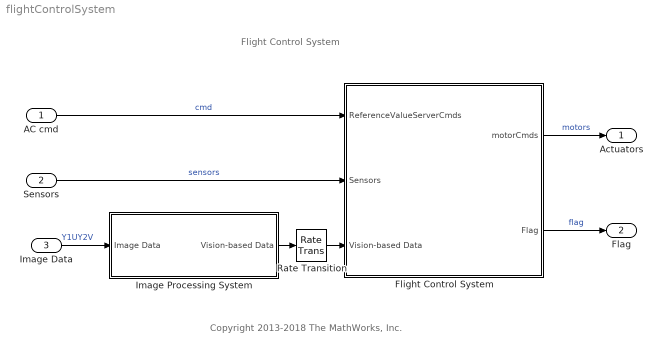
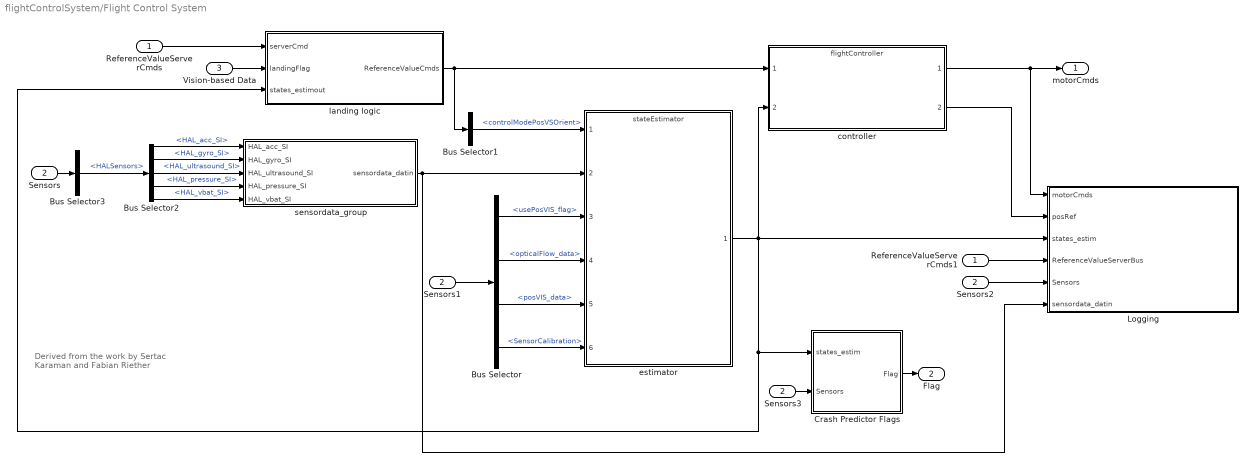
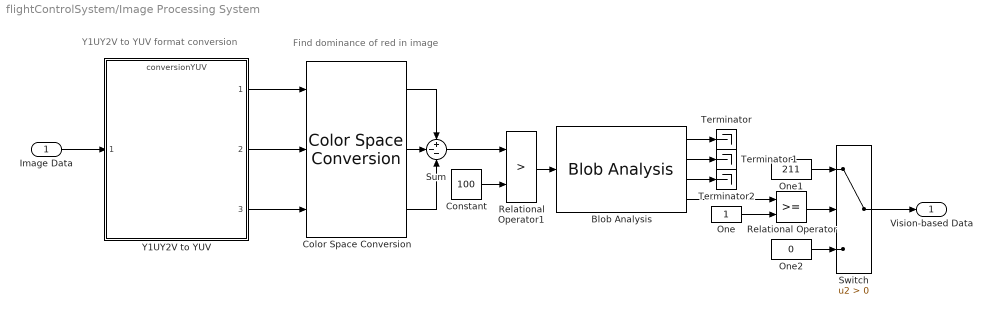
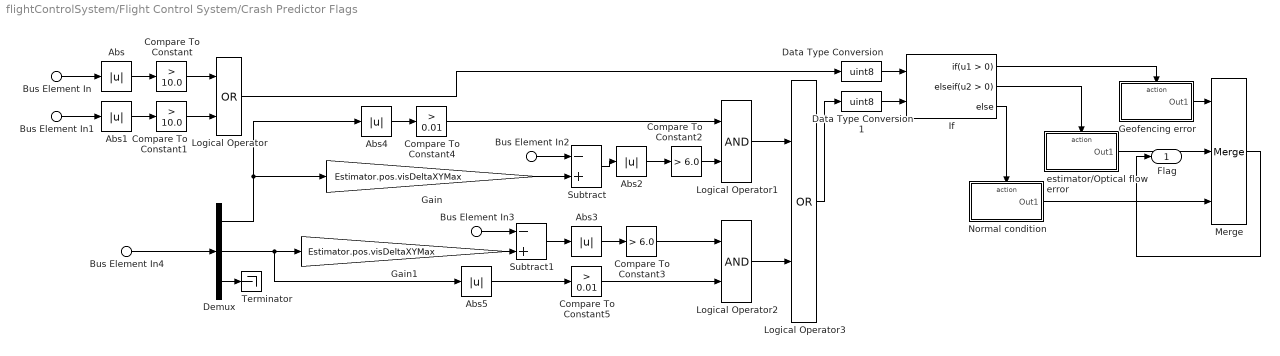
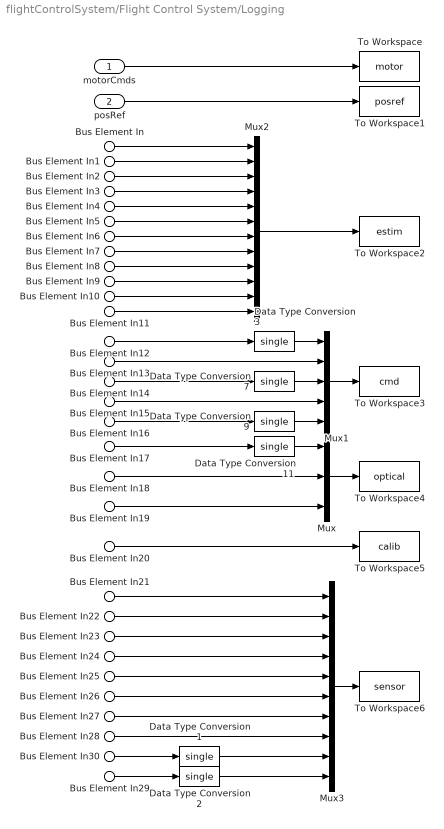
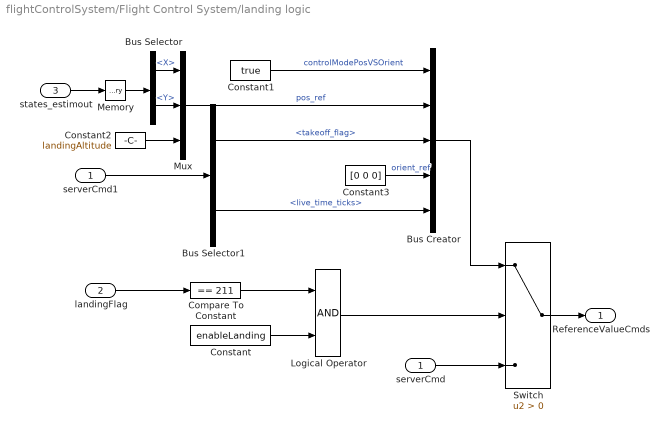
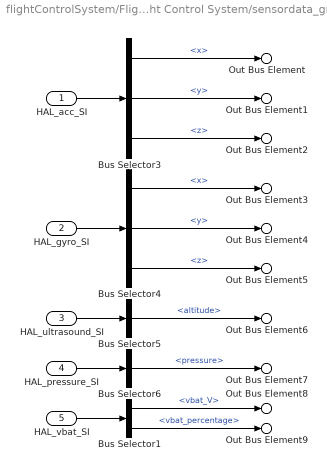
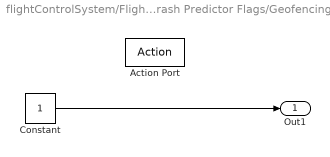
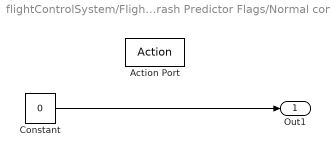
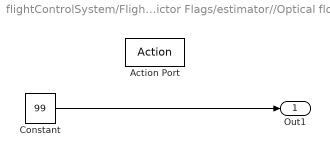
/*
 * flightControlSystem.c
 *
 * Academic License - for use in teaching, academic research, and meeting
 * course requirements at degree granting institutions only.  Not for
 * government, commercial, or other organizational use.
 *
 * Code generation for model "flightControlSystem".
 *
 * Model version              : 1.138
 * Simulink Coder version : 9.0 (R2018b) 24-May-2018
 * C source code generated on : Sun Feb 17 15:29:21 2019
 *
 * Target selection: ert.tlc
 * Note: GRT includes extra infrastructure and instrumentation for prototyping
 * Embedded hardware selection: ARM Compatible->ARM 9
 * Code generation objectives: Unspecified
 * Validation result: Not run
 */

#include "flightControlSystem.h"
#include "flightControlSystem_private.h"

/* Exported block signals */
CommandBus cmd_inport;                 /* '<Root>/AC cmd' */
SensorsBus sensor_inport;              /* '<Root>/Sensors' */
real32_T motors_outport[4];            /* '<S1>/controller' */
uint8_T flag_outport;                  /* '<S3>/Merge' */

/* Block signals (default storage) */
B_flightControlSystem_T flightControlSystem_B;

/* Block states (default storage) */
DW_flightControlSystem_T flightControlSystem_DW;

/* External outputs (root outports fed by signals with default storage) */
ExtY_flightControlSystem_T flightControlSystem_Y;

/* Real-time model */
RT_MODEL_flightControlSystem_T flightControlSystem_M_;
RT_MODEL_flightControlSystem_T *const flightControlSystem_M =
  &flightControlSystem_M_;
static void rate_monotonic_scheduler(void);

/*
 * Set which subrates need to run this base step (base rate always runs).
 * This function must be called prior to calling the model step function
 * in order to "remember" which rates need to run this base step.  The
 * buffering of events allows for overlapping preemption.
 */
void flightControlSystem_SetEventsForThisBaseStep(boolean_T *eventFlags)
{
  /* Task runs when its counter is zero, computed via rtmStepTask macro */
  eventFlags[1] = ((boolean_T)rtmStepTask(flightControlSystem_M, 1));
}

/*
 *   This function updates active task flag for each subrate
 * and rate transition flags for tasks that exchange data.
 * The function assumes rate-monotonic multitasking scheduler.
 * The function must be called at model base rate so that
 * the generated code self-manages all its subrates and rate
 * transition flags.
 */
static void rate_monotonic_scheduler(void)
{
  /* Compute which subrates run during the next base time step.  Subrates
   * are an integer multiple of the base rate counter.  Therefore, the subtask
   * counter is reset when it reaches its limit (zero means run).
   */
  (flightControlSystem_M->Timing.TaskCounters.TID[1])++;
  if ((flightControlSystem_M->Timing.TaskCounters.TID[1]) > 39) {/* Sample time: [0.2s, 0.0s] */
    flightControlSystem_M->Timing.TaskCounters.TID[1] = 0;
  }
}

/*
 * Output and update for action system:
 *    '<S3>/Geofencing error'
 *    '<S3>/estimator//Optical flow error'
 *    '<S3>/Normal condition'
 */
void flightControlSystem_Geofencingerror(uint8_T *rty_Out1,
  P_Geofencingerror_flightControlSystem_T *localP)
{
  /* SignalConversion: '<S13>/OutportBuffer_InsertedFor_Out1_at_inport_0' incorporates:
   *  Constant: '<S13>/Constant'
   */
  *rty_Out1 = localP->Constant_Value;
}

/* Start for atomic system: '<S1>/Logging' */
void flightControlSystem_Logging_Start(RT_MODEL_flightControlSystem_T * const
  flightControlSystem_M, DW_Logging_flightControlSystem_T *localDW)
{
  /* Start for ToWorkspace: '<S4>/To Workspace2' */
  {
    static int_T rt_ToWksWidths[] = { 12 };

    static int_T rt_ToWksNumDimensions[] = { 1 };

    static int_T rt_ToWksDimensions[] = { 12 };

    static boolean_T rt_ToWksIsVarDims[] = { 0 };

    static void *rt_ToWksCurrSigDims[] = { (NULL) };

    static int_T rt_ToWksCurrSigDimsSize[] = { 4 };

    static BuiltInDTypeId rt_ToWksDataTypeIds[] = { SS_SINGLE };

    static int_T rt_ToWksComplexSignals[] = { 0 };

    static int_T rt_ToWksFrameData[] = { 0 };

    static RTWPreprocessingFcnPtr rt_ToWksLoggingPreprocessingFcnPtrs[] = {
      (NULL)
    };

    static const char_T *rt_ToWksLabels[] = { "" };

    static RTWLogSignalInfo rt_ToWksSignalInfo = {
      1,
      rt_ToWksWidths,
      rt_ToWksNumDimensions,
      rt_ToWksDimensions,
      rt_ToWksIsVarDims,
      rt_ToWksCurrSigDims,
      rt_ToWksCurrSigDimsSize,
      rt_ToWksDataTypeIds,
      rt_ToWksComplexSignals,
      rt_ToWksFrameData,
      rt_ToWksLoggingPreprocessingFcnPtrs,

      { rt_ToWksLabels },
      (NULL),
      (NULL),
      (NULL),

      { (NULL) },

      { (NULL) },
      (NULL),
      (NULL)
    };

    static const char_T rt_ToWksBlockName[] =
      "flightControlSystem/Flight Control System/Logging/To Workspace2";
    localDW->ToWorkspace2_PWORK.LoggedData = rt_CreateStructLogVar(
      flightControlSystem_M->rtwLogInfo,
      0.0,
      rtmGetTFinal(flightControlSystem_M),
      flightControlSystem_M->Timing.stepSize0,
      (&rtmGetErrorStatus(flightControlSystem_M)),
      "estim",
      1,
      0,
      1,
      0.005,
      &rt_ToWksSignalInfo,
      rt_ToWksBlockName);
    if (localDW->ToWorkspace2_PWORK.LoggedData == (NULL))
      return;
  }

  /* Start for ToWorkspace: '<S4>/To Workspace6' */
  {
    static int_T rt_ToWksWidths[] = { 10 };

    static int_T rt_ToWksNumDimensions[] = { 1 };

    static int_T rt_ToWksDimensions[] = { 10 };

    static boolean_T rt_ToWksIsVarDims[] = { 0 };

    static void *rt_ToWksCurrSigDims[] = { (NULL) };

    static int_T rt_ToWksCurrSigDimsSize[] = { 4 };

    static BuiltInDTypeId rt_ToWksDataTypeIds[] = { SS_SINGLE };

    static int_T rt_ToWksComplexSignals[] = { 0 };

    static int_T rt_ToWksFrameData[] = { 0 };

    static RTWPreprocessingFcnPtr rt_ToWksLoggingPreprocessingFcnPtrs[] = {
      (NULL)
    };

    static const char_T *rt_ToWksLabels[] = { "" };

    static RTWLogSignalInfo rt_ToWksSignalInfo = {
      1,
      rt_ToWksWidths,
      rt_ToWksNumDimensions,
      rt_ToWksDimensions,
      rt_ToWksIsVarDims,
      rt_ToWksCurrSigDims,
      rt_ToWksCurrSigDimsSize,
      rt_ToWksDataTypeIds,
      rt_ToWksComplexSignals,
      rt_ToWksFrameData,
      rt_ToWksLoggingPreprocessingFcnPtrs,

      { rt_ToWksLabels },
      (NULL),
      (NULL),
      (NULL),

      { (NULL) },

      { (NULL) },
      (NULL),
      (NULL)
    };

    static const char_T rt_ToWksBlockName[] =
      "flightControlSystem/Flight Control System/Logging/To Workspace6";
    localDW->ToWorkspace6_PWORK.LoggedData = rt_CreateStructLogVar(
      flightControlSystem_M->rtwLogInfo,
      0.0,
      rtmGetTFinal(flightControlSystem_M),
      flightControlSystem_M->Timing.stepSize0,
      (&rtmGetErrorStatus(flightControlSystem_M)),
      "sensor",
      1,
      0,
      1,
      0.005,
      &rt_ToWksSignalInfo,
      rt_ToWksBlockName);
    if (localDW->ToWorkspace6_PWORK.LoggedData == (NULL))
      return;
  }

  /* Start for ToWorkspace: '<S4>/To Workspace3' */
  {
    static int_T rt_ToWksWidths[] = { 9 };

    static int_T rt_ToWksNumDimensions[] = { 1 };

    static int_T rt_ToWksDimensions[] = { 9 };

    static boolean_T rt_ToWksIsVarDims[] = { 0 };

    static void *rt_ToWksCurrSigDims[] = { (NULL) };

    static int_T rt_ToWksCurrSigDimsSize[] = { 4 };

    static BuiltInDTypeId rt_ToWksDataTypeIds[] = { SS_SINGLE };

    static int_T rt_ToWksComplexSignals[] = { 0 };

    static int_T rt_ToWksFrameData[] = { 0 };

    static RTWPreprocessingFcnPtr rt_ToWksLoggingPreprocessingFcnPtrs[] = {
      (NULL)
    };

    static const char_T *rt_ToWksLabels[] = { "" };

    static RTWLogSignalInfo rt_ToWksSignalInfo = {
      1,
      rt_ToWksWidths,
      rt_ToWksNumDimensions,
      rt_ToWksDimensions,
      rt_ToWksIsVarDims,
      rt_ToWksCurrSigDims,
      rt_ToWksCurrSigDimsSize,
      rt_ToWksDataTypeIds,
      rt_ToWksComplexSignals,
      rt_ToWksFrameData,
      rt_ToWksLoggingPreprocessingFcnPtrs,

      { rt_ToWksLabels },
      (NULL),
      (NULL),
      (NULL),

      { (NULL) },

      { (NULL) },
      (NULL),
      (NULL)
    };

    static const char_T rt_ToWksBlockName[] =
      "flightControlSystem/Flight Control System/Logging/To Workspace3";
    localDW->ToWorkspace3_PWORK.LoggedData = rt_CreateStructLogVar(
      flightControlSystem_M->rtwLogInfo,
      0.0,
      rtmGetTFinal(flightControlSystem_M),
      flightControlSystem_M->Timing.stepSize0,
      (&rtmGetErrorStatus(flightControlSystem_M)),
      "cmd",
      1,
      0,
      1,
      0.005,
      &rt_ToWksSignalInfo,
      rt_ToWksBlockName);
    if (localDW->ToWorkspace3_PWORK.LoggedData == (NULL))
      return;
  }

  /* Start for ToWorkspace: '<S4>/To Workspace4' */
  {
    static int_T rt_ToWksWidths[] = { 8 };

    static int_T rt_ToWksNumDimensions[] = { 1 };

    static int_T rt_ToWksDimensions[] = { 8 };

    static boolean_T rt_ToWksIsVarDims[] = { 0 };

    static void *rt_ToWksCurrSigDims[] = { (NULL) };

    static int_T rt_ToWksCurrSigDimsSize[] = { 4 };

    static BuiltInDTypeId rt_ToWksDataTypeIds[] = { SS_SINGLE };

    static int_T rt_ToWksComplexSignals[] = { 0 };

    static int_T rt_ToWksFrameData[] = { 0 };

    static RTWPreprocessingFcnPtr rt_ToWksLoggingPreprocessingFcnPtrs[] = {
      (NULL)
    };

    static const char_T *rt_ToWksLabels[] = { "" };

    static RTWLogSignalInfo rt_ToWksSignalInfo = {
      1,
      rt_ToWksWidths,
      rt_ToWksNumDimensions,
      rt_ToWksDimensions,
      rt_ToWksIsVarDims,
      rt_ToWksCurrSigDims,
      rt_ToWksCurrSigDimsSize,
      rt_ToWksDataTypeIds,
      rt_ToWksComplexSignals,
      rt_ToWksFrameData,
      rt_ToWksLoggingPreprocessingFcnPtrs,

      { rt_ToWksLabels },
      (NULL),
      (NULL),
      (NULL),

      { (NULL) },

      { (NULL) },
      (NULL),
      (NULL)
    };

    static const char_T rt_ToWksBlockName[] =
      "flightControlSystem/Flight Control System/Logging/To Workspace4";
    localDW->ToWorkspace4_PWORK.LoggedData = rt_CreateStructLogVar(
      flightControlSystem_M->rtwLogInfo,
      0.0,
      rtmGetTFinal(flightControlSystem_M),
      flightControlSystem_M->Timing.stepSize0,
      (&rtmGetErrorStatus(flightControlSystem_M)),
      "optical",
      1,
      0,
      1,
      0.005,
      &rt_ToWksSignalInfo,
      rt_ToWksBlockName);
    if (localDW->ToWorkspace4_PWORK.LoggedData == (NULL))
      return;
  }

  /* Start for ToWorkspace: '<S4>/To Workspace5' */
  {
    static int_T rt_ToWksWidths[] = { 8 };

    static int_T rt_ToWksNumDimensions[] = { 1 };

    static int_T rt_ToWksDimensions[] = { 8 };

    static boolean_T rt_ToWksIsVarDims[] = { 0 };

    static void *rt_ToWksCurrSigDims[] = { (NULL) };

    static int_T rt_ToWksCurrSigDimsSize[] = { 4 };

    static BuiltInDTypeId rt_ToWksDataTypeIds[] = { SS_SINGLE };

    static int_T rt_ToWksComplexSignals[] = { 0 };

    static int_T rt_ToWksFrameData[] = { 0 };

    static RTWPreprocessingFcnPtr rt_ToWksLoggingPreprocessingFcnPtrs[] = {
      (NULL)
    };

    static const char_T *rt_ToWksLabels[] = { "SensorCalibration" };

    static RTWLogSignalInfo rt_ToWksSignalInfo = {
      1,
      rt_ToWksWidths,
      rt_ToWksNumDimensions,
      rt_ToWksDimensions,
      rt_ToWksIsVarDims,
      rt_ToWksCurrSigDims,
      rt_ToWksCurrSigDimsSize,
      rt_ToWksDataTypeIds,
      rt_ToWksComplexSignals,
      rt_ToWksFrameData,
      rt_ToWksLoggingPreprocessingFcnPtrs,

      { rt_ToWksLabels },
      (NULL),
      (NULL),
      (NULL),

      { (NULL) },

      { (NULL) },
      (NULL),
      (NULL)
    };

    static const char_T rt_ToWksBlockName[] =
      "flightControlSystem/Flight Control System/Logging/To Workspace5";
    localDW->ToWorkspace5_PWORK.LoggedData = rt_CreateStructLogVar(
      flightControlSystem_M->rtwLogInfo,
      0.0,
      rtmGetTFinal(flightControlSystem_M),
      flightControlSystem_M->Timing.stepSize0,
      (&rtmGetErrorStatus(flightControlSystem_M)),
      "calib",
      1,
      0,
      100,
      0.005,
      &rt_ToWksSignalInfo,
      rt_ToWksBlockName);
    if (localDW->ToWorkspace5_PWORK.LoggedData == (NULL))
      return;
  }

  /* Start for ToWorkspace: '<S4>/To Workspace' */
  {
    static int_T rt_ToWksWidths[] = { 4 };

    static int_T rt_ToWksNumDimensions[] = { 1 };

    static int_T rt_ToWksDimensions[] = { 4 };

    static boolean_T rt_ToWksIsVarDims[] = { 0 };

    static void *rt_ToWksCurrSigDims[] = { (NULL) };

    static int_T rt_ToWksCurrSigDimsSize[] = { 4 };

    static BuiltInDTypeId rt_ToWksDataTypeIds[] = { SS_SINGLE };

    static int_T rt_ToWksComplexSignals[] = { 0 };

    static int_T rt_ToWksFrameData[] = { 0 };

    static RTWPreprocessingFcnPtr rt_ToWksLoggingPreprocessingFcnPtrs[] = {
      (NULL)
    };

    static const char_T *rt_ToWksLabels[] = { "" };

    static RTWLogSignalInfo rt_ToWksSignalInfo = {
      1,
      rt_ToWksWidths,
      rt_ToWksNumDimensions,
      rt_ToWksDimensions,
      rt_ToWksIsVarDims,
      rt_ToWksCurrSigDims,
      rt_ToWksCurrSigDimsSize,
      rt_ToWksDataTypeIds,
      rt_ToWksComplexSignals,
      rt_ToWksFrameData,
      rt_ToWksLoggingPreprocessingFcnPtrs,

      { rt_ToWksLabels },
      (NULL),
      (NULL),
      (NULL),

      { (NULL) },

      { (NULL) },
      (NULL),
      (NULL)
    };

    static const char_T rt_ToWksBlockName[] =
      "flightControlSystem/Flight Control System/Logging/To Workspace";
    localDW->ToWorkspace_PWORK.LoggedData = rt_CreateStructLogVar(
      flightControlSystem_M->rtwLogInfo,
      0.0,
      rtmGetTFinal(flightControlSystem_M),
      flightControlSystem_M->Timing.stepSize0,
      (&rtmGetErrorStatus(flightControlSystem_M)),
      "motor",
      1,
      0,
      1,
      0.005,
      &rt_ToWksSignalInfo,
      rt_ToWksBlockName);
    if (localDW->ToWorkspace_PWORK.LoggedData == (NULL))
      return;
  }

  /* Start for ToWorkspace: '<S4>/To Workspace1' */
  {
    static int_T rt_ToWksWidths[] = { 8 };

    static int_T rt_ToWksNumDimensions[] = { 1 };

    static int_T rt_ToWksDimensions[] = { 8 };

    static boolean_T rt_ToWksIsVarDims[] = { 0 };

    static void *rt_ToWksCurrSigDims[] = { (NULL) };

    static int_T rt_ToWksCurrSigDimsSize[] = { 4 };

    static BuiltInDTypeId rt_ToWksDataTypeIds[] = { SS_SINGLE };

    static int_T rt_ToWksComplexSignals[] = { 0 };

    static int_T rt_ToWksFrameData[] = { 0 };

    static RTWPreprocessingFcnPtr rt_ToWksLoggingPreprocessingFcnPtrs[] = {
      (NULL)
    };

    static const char_T *rt_ToWksLabels[] = { "" };

    static RTWLogSignalInfo rt_ToWksSignalInfo = {
      1,
      rt_ToWksWidths,
      rt_ToWksNumDimensions,
      rt_ToWksDimensions,
      rt_ToWksIsVarDims,
      rt_ToWksCurrSigDims,
      rt_ToWksCurrSigDimsSize,
      rt_ToWksDataTypeIds,
      rt_ToWksComplexSignals,
      rt_ToWksFrameData,
      rt_ToWksLoggingPreprocessingFcnPtrs,

      { rt_ToWksLabels },
      (NULL),
      (NULL),
      (NULL),

      { (NULL) },

      { (NULL) },
      (NULL),
      (NULL)
    };

    static const char_T rt_ToWksBlockName[] =
      "flightControlSystem/Flight Control System/Logging/To Workspace1";
    localDW->ToWorkspace1_PWORK.LoggedData = rt_CreateStructLogVar(
      flightControlSystem_M->rtwLogInfo,
      0.0,
      rtmGetTFinal(flightControlSystem_M),
      flightControlSystem_M->Timing.stepSize0,
      (&rtmGetErrorStatus(flightControlSystem_M)),
      "posref",
      1,
      0,
      1,
      0.005,
      &rt_ToWksSignalInfo,
      rt_ToWksBlockName);
    if (localDW->ToWorkspace1_PWORK.LoggedData == (NULL))
      return;
  }
}

/* Output and update for atomic system: '<S1>/Logging' */
void flightControlSystem_Logging(RT_MODEL_flightControlSystem_T * const
  flightControlSystem_M, const real32_T rtu_motorCmds[4], const real32_T
  rtu_posRef[8], const statesEstim_t *rtu_states_estim_Inport_3, const
  CommandBus *rtu_ReferenceValueServerBus_Inport_4, const SensorsBus
  *rtu_Sensors_Inport_5, real32_T rtu_sensordata_datin_Inport_6, uint32_T
  rtu_sensordata_datin_Inport_6_d, real32_T rtu_sensordata_datin_Inport_6_e,
  real32_T rtu_sensordata_datin_Inport_6_c, real32_T
  rtu_sensordata_datin_Inport_6_cg, real32_T rtu_sensordata_datin_Inport_6_i,
  real32_T rtu_sensordata_datin_Inport_6_h, real32_T
  rtu_sensordata_datin_Inport_6_b, real32_T rtu_sensordata_datin_Inport_6_dz,
  real32_T rtu_sensordata_datin_Inport_6_n, B_Logging_flightControlSystem_T
  *localB, DW_Logging_flightControlSystem_T *localDW)
{
  /* local block i/o variables */
  real32_T rtb_SigConversion_InsertedFor_Sensors_BusSelector_BusSelector_i[8];
  real32_T rtb_DataTypeConversion7;
  real32_T rtb_DataTypeConversion11;
  int32_T i;

  /* SignalConversion: '<S4>/states_estim_BusSelector' */
  rtb_DataTypeConversion7 = rtu_states_estim_Inport_3->q;
  rtb_DataTypeConversion11 = rtu_states_estim_Inport_3->r;

  /* SignalConversion: '<S4>/TmpSignal ConversionAtTo Workspace2Inport1' incorporates:
   *  SignalConversion: '<S4>/states_estim_BusSelector'
   */
  localB->TmpSignalConversionAtToWorkspace2Inport1[0] =
    rtu_states_estim_Inport_3->X;
  localB->TmpSignalConversionAtToWorkspace2Inport1[1] =
    rtu_states_estim_Inport_3->Y;
  localB->TmpSignalConversionAtToWorkspace2Inport1[2] =
    rtu_states_estim_Inport_3->Z;
  localB->TmpSignalConversionAtToWorkspace2Inport1[3] =
    rtu_states_estim_Inport_3->yaw;
  localB->TmpSignalConversionAtToWorkspace2Inport1[4] =
    rtu_states_estim_Inport_3->pitch;
  localB->TmpSignalConversionAtToWorkspace2Inport1[5] =
    rtu_states_estim_Inport_3->roll;
  localB->TmpSignalConversionAtToWorkspace2Inport1[6] =
    rtu_states_estim_Inport_3->dx;
  localB->TmpSignalConversionAtToWorkspace2Inport1[7] =
    rtu_states_estim_Inport_3->dy;
  localB->TmpSignalConversionAtToWorkspace2Inport1[8] =
    rtu_states_estim_Inport_3->dz;
  localB->TmpSignalConversionAtToWorkspace2Inport1[9] =
    rtu_states_estim_Inport_3->p;
  localB->TmpSignalConversionAtToWorkspace2Inport1[10] = rtb_DataTypeConversion7;
  localB->TmpSignalConversionAtToWorkspace2Inport1[11] =
    rtb_DataTypeConversion11;

  /* ToWorkspace: '<S4>/To Workspace2' */
  {
    double locTime = flightControlSystem_M->Timing.taskTime0;
    ;
    rt_UpdateStructLogVar((StructLogVar *)localDW->ToWorkspace2_PWORK.LoggedData,
                          &locTime,
                          &localB->TmpSignalConversionAtToWorkspace2Inport1[0]);
  }

  /* DataTypeConversion: '<S4>/Data Type Conversion1' */
  rtb_DataTypeConversion11 = rtu_sensordata_datin_Inport_6;

  /* DataTypeConversion: '<S4>/Data Type Conversion2' */
  rtb_DataTypeConversion7 = (real32_T)rtu_sensordata_datin_Inport_6_d;

  /* SignalConversion: '<S4>/TmpSignal ConversionAtTo Workspace6Inport1' */
  localB->TmpSignalConversionAtToWorkspace6Inport1[0] =
    rtu_sensordata_datin_Inport_6_e;
  localB->TmpSignalConversionAtToWorkspace6Inport1[1] =
    rtu_sensordata_datin_Inport_6_c;
  localB->TmpSignalConversionAtToWorkspace6Inport1[2] =
    rtu_sensordata_datin_Inport_6_cg;
  localB->TmpSignalConversionAtToWorkspace6Inport1[3] =
    rtu_sensordata_datin_Inport_6_i;
  localB->TmpSignalConversionAtToWorkspace6Inport1[4] =
    rtu_sensordata_datin_Inport_6_h;
  localB->TmpSignalConversionAtToWorkspace6Inport1[5] =
    rtu_sensordata_datin_Inport_6_b;
  localB->TmpSignalConversionAtToWorkspace6Inport1[6] =
    rtu_sensordata_datin_Inport_6_dz;
  localB->TmpSignalConversionAtToWorkspace6Inport1[7] =
    rtu_sensordata_datin_Inport_6_n;
  localB->TmpSignalConversionAtToWorkspace6Inport1[8] = rtb_DataTypeConversion11;
  localB->TmpSignalConversionAtToWorkspace6Inport1[9] = rtb_DataTypeConversion7;

  /* ToWorkspace: '<S4>/To Workspace6' */
  {
    double locTime = flightControlSystem_M->Timing.taskTime0;
    ;
    rt_UpdateStructLogVar((StructLogVar *)localDW->ToWorkspace6_PWORK.LoggedData,
                          &locTime,
                          &localB->TmpSignalConversionAtToWorkspace6Inport1[0]);
  }

  /* DataTypeConversion: '<S4>/Data Type Conversion3' */
  rtb_DataTypeConversion11 =
    rtu_ReferenceValueServerBus_Inport_4->controlModePosVSOrient;

  /* DataTypeConversion: '<S4>/Data Type Conversion7' */
  rtb_DataTypeConversion7 = rtu_ReferenceValueServerBus_Inport_4->takeoff_flag;

  /* SignalConversion: '<S4>/TmpSignal ConversionAtTo Workspace3Inport1' incorporates:
   *  DataTypeConversion: '<S4>/Data Type Conversion9'
   *  SignalConversion: '<S4>/ReferenceValueServerBus_BusSelector'
   */
  localB->TmpSignalConversionAtToWorkspace3Inport1[0] = rtb_DataTypeConversion11;
  localB->TmpSignalConversionAtToWorkspace3Inport1[1] =
    rtu_ReferenceValueServerBus_Inport_4->pos_ref[0];
  localB->TmpSignalConversionAtToWorkspace3Inport1[2] =
    rtu_ReferenceValueServerBus_Inport_4->pos_ref[1];
  localB->TmpSignalConversionAtToWorkspace3Inport1[3] =
    rtu_ReferenceValueServerBus_Inport_4->pos_ref[2];
  localB->TmpSignalConversionAtToWorkspace3Inport1[4] = rtb_DataTypeConversion7;
  localB->TmpSignalConversionAtToWorkspace3Inport1[5] =
    rtu_ReferenceValueServerBus_Inport_4->orient_ref[0];
  localB->TmpSignalConversionAtToWorkspace3Inport1[6] =
    rtu_ReferenceValueServerBus_Inport_4->orient_ref[1];
  localB->TmpSignalConversionAtToWorkspace3Inport1[7] =
    rtu_ReferenceValueServerBus_Inport_4->orient_ref[2];
  localB->TmpSignalConversionAtToWorkspace3Inport1[8] = (real32_T)
    rtu_ReferenceValueServerBus_Inport_4->live_time_ticks;

  /* ToWorkspace: '<S4>/To Workspace3' */
  {
    double locTime = flightControlSystem_M->Timing.taskTime0;
    ;
    rt_UpdateStructLogVar((StructLogVar *)localDW->ToWorkspace3_PWORK.LoggedData,
                          &locTime,
                          &localB->TmpSignalConversionAtToWorkspace3Inport1[0]);
  }

  /* DataTypeConversion: '<S4>/Data Type Conversion11' */
  rtb_DataTypeConversion11 = rtu_Sensors_Inport_5->VisionSensors.usePosVIS_flag;

  /* SignalConversion: '<S4>/TmpSignal ConversionAtTo Workspace4Inport1' incorporates:
   *  SignalConversion: '<S4>/Sensors_BusSelector'
   */
  localB->TmpSignalConversionAtToWorkspace4Inport1[0] = rtb_DataTypeConversion11;
  localB->TmpSignalConversionAtToWorkspace4Inport1[1] =
    rtu_Sensors_Inport_5->VisionSensors.opticalFlow_data[0];
  localB->TmpSignalConversionAtToWorkspace4Inport1[2] =
    rtu_Sensors_Inport_5->VisionSensors.opticalFlow_data[1];
  localB->TmpSignalConversionAtToWorkspace4Inport1[3] =
    rtu_Sensors_Inport_5->VisionSensors.opticalFlow_data[2];
  localB->TmpSignalConversionAtToWorkspace4Inport1[4] =
    rtu_Sensors_Inport_5->VisionSensors.posVIS_data[0];
  localB->TmpSignalConversionAtToWorkspace4Inport1[5] =
    rtu_Sensors_Inport_5->VisionSensors.posVIS_data[1];
  localB->TmpSignalConversionAtToWorkspace4Inport1[6] =
    rtu_Sensors_Inport_5->VisionSensors.posVIS_data[2];
  localB->TmpSignalConversionAtToWorkspace4Inport1[7] =
    rtu_Sensors_Inport_5->VisionSensors.posVIS_data[3];

  /* ToWorkspace: '<S4>/To Workspace4' */
  {
    double locTime = flightControlSystem_M->Timing.taskTime0;
    ;
    rt_UpdateStructLogVar((StructLogVar *)localDW->ToWorkspace4_PWORK.LoggedData,
                          &locTime,
                          &localB->TmpSignalConversionAtToWorkspace4Inport1[0]);
  }

  /* SignalConversion: '<S4>/Sensors_BusSelector' */
  for (i = 0; i < 8; i++) {
    rtb_SigConversion_InsertedFor_Sensors_BusSelector_BusSelector_i[i] =
      rtu_Sensors_Inport_5->SensorCalibration[i];
  }

  /* ToWorkspace: '<S4>/To Workspace5' */
  {
    double locTime = flightControlSystem_M->Timing.taskTime0;
    ;
    rt_UpdateStructLogVar((StructLogVar *)localDW->ToWorkspace5_PWORK.LoggedData,
                          &locTime,
                          &rtb_SigConversion_InsertedFor_Sensors_BusSelector_BusSelector_i
                          [0]);
  }

  /* ToWorkspace: '<S4>/To Workspace' */
  {
    double locTime = flightControlSystem_M->Timing.taskTime0;
    ;
    rt_UpdateStructLogVar((StructLogVar *)localDW->ToWorkspace_PWORK.LoggedData,
                          &locTime, &rtu_motorCmds[0]);
  }

  /* ToWorkspace: '<S4>/To Workspace1' */
  {
    double locTime = flightControlSystem_M->Timing.taskTime0;
    ;
    rt_UpdateStructLogVar((StructLogVar *)localDW->ToWorkspace1_PWORK.LoggedData,
                          &locTime, &rtu_posRef[0]);
  }
}

/* System initialize for atomic system: '<Root>/Flight Control System' */
void flightControlSystem_FlightControlSystem_Init
  (DW_FlightControlSystem_flightControlSystem_T *localDW,
   P_FlightControlSystem_flightControlSystem_T *localP)
{
  /* InitializeConditions for Memory: '<S5>/Memory' */
  localDW->Memory_PreviousInput = localP->Memory_InitialCondition;

  /* SystemInitialize for ModelReference: '<S1>/estimator' */
  stateEstimator_Init();

  /* SystemInitialize for ModelReference: '<S1>/controller' */
  flightController_Init();

  /* SystemInitialize for Merge: '<S3>/Merge' */
  flag_outport = localP->Merge_InitialOutput;
}

/* Start for atomic system: '<Root>/Flight Control System' */
void flightControlSystem_FlightControlSystem_Start
  (RT_MODEL_flightControlSystem_T * const flightControlSystem_M,
   DW_FlightControlSystem_flightControlSystem_T *localDW)
{
  /* Start for ModelReference: '<S1>/estimator' */
  stateEstimator_Start();

  /* Start for Atomic SubSystem: '<S1>/Logging' */
  flightControlSystem_Logging_Start(flightControlSystem_M, &localDW->Logging);

  /* End of Start for SubSystem: '<S1>/Logging' */
}

/* Output and update for atomic system: '<Root>/Flight Control System' */
void flightControlSystem_FlightControlSystem(RT_MODEL_flightControlSystem_T *
  const flightControlSystem_M, const CommandBus *rtu_ReferenceValueServerCmds,
  const SensorsBus *rtu_Sensors, real_T rtu_VisionbasedData,
  B_FlightControlSystem_flightControlSystem_T *localB,
  DW_FlightControlSystem_flightControlSystem_T *localDW,
  P_FlightControlSystem_flightControlSystem_T *localP)
{
  /* Switch: '<S5>/Switch' incorporates:
   *  BusCreator: '<S5>/Bus Creator'
   *  Constant: '<S16>/Constant'
   *  Constant: '<S5>/Constant'
   *  Constant: '<S5>/Constant1'
   *  Constant: '<S5>/Constant2'
   *  Constant: '<S5>/Constant3'
   *  Logic: '<S5>/Logical Operator'
   *  Memory: '<S5>/Memory'
   *  RelationalOperator: '<S16>/Compare'
   *  SignalConversion: '<S5>/TmpSignal ConversionAtBus CreatorInport2'
   */
  if ((rtu_VisionbasedData == localP->CompareToConstant_const) &&
      rtP_enableLanding) {
    localB->Switch_o.controlModePosVSOrient = localP->Constant1_Value;
    localB->Switch_o.pos_ref[0] = localDW->Memory_PreviousInput.X;
    localB->Switch_o.pos_ref[1] = localDW->Memory_PreviousInput.Y;
    localB->Switch_o.pos_ref[2] = rtP_landingAltitude;
    localB->Switch_o.takeoff_flag = rtu_ReferenceValueServerCmds->takeoff_flag;
    localB->Switch_o.orient_ref[0] = localP->Constant3_Value[0];
    localB->Switch_o.orient_ref[1] = localP->Constant3_Value[1];
    localB->Switch_o.orient_ref[2] = localP->Constant3_Value[2];
    localB->Switch_o.live_time_ticks =
      rtu_ReferenceValueServerCmds->live_time_ticks;
  } else {
    localB->Switch_o = *rtu_ReferenceValueServerCmds;
  }

  /* End of Switch: '<S5>/Switch' */

  /* SignalConversion: '<S6>/SigConversion_InsertedFor_Bus Selector3_at_outport_0' */
  localB->x = rtu_Sensors->HALSensors.HAL_acc_SI.x;

  /* SignalConversion: '<S6>/SigConversion_InsertedFor_Bus Selector3_at_outport_1' */
  localB->y = rtu_Sensors->HALSensors.HAL_acc_SI.y;

  /* SignalConversion: '<S6>/SigConversion_InsertedFor_Bus Selector3_at_outport_2' */
  localB->z = rtu_Sensors->HALSensors.HAL_acc_SI.z;

  /* SignalConversion: '<S6>/SigConversion_InsertedFor_Bus Selector4_at_outport_0' */
  localB->x_c = rtu_Sensors->HALSensors.HAL_gyro_SI.x;

  /* SignalConversion: '<S6>/SigConversion_InsertedFor_Bus Selector4_at_outport_1' */
  localB->y_n = rtu_Sensors->HALSensors.HAL_gyro_SI.y;

  /* SignalConversion: '<S6>/SigConversion_InsertedFor_Bus Selector4_at_outport_2' */
  localB->z_p = rtu_Sensors->HALSensors.HAL_gyro_SI.z;

  /* SignalConversion: '<S6>/SigConversion_InsertedFor_Bus Selector5_at_outport_0' */
  localB->altitude = rtu_Sensors->HALSensors.HAL_ultrasound_SI.altitude;

  /* SignalConversion: '<S6>/SigConversion_InsertedFor_Bus Selector6_at_outport_0' */
  localB->pressure = rtu_Sensors->HALSensors.HAL_pressure_SI.pressure;

  /* SignalConversion: '<S6>/SigConversion_InsertedFor_Bus Selector1_at_outport_0' */
  localB->vbat_V = rtu_Sensors->HALSensors.HAL_vbat_SI.vbat_V;

  /* SignalConversion: '<S6>/SigConversion_InsertedFor_Bus Selector1_at_outport_1' */
  localB->vbat_percentage = rtu_Sensors->HALSensors.HAL_vbat_SI.vbat_percentage;

  /* BusCreator: '<S1>/BusConversion_InsertedFor_estimator_at_inport_1' */
  localB->BusConversion_InsertedFor_estimator_at_inport_1_BusCreator1.ddx =
    localB->x;
  localB->BusConversion_InsertedFor_estimator_at_inport_1_BusCreator1.ddy =
    localB->y;
  localB->BusConversion_InsertedFor_estimator_at_inport_1_BusCreator1.ddz =
    localB->z;
  localB->BusConversion_InsertedFor_estimator_at_inport_1_BusCreator1.p =
    localB->x_c;
  localB->BusConversion_InsertedFor_estimator_at_inport_1_BusCreator1.q =
    localB->y_n;
  localB->BusConversion_InsertedFor_estimator_at_inport_1_BusCreator1.r =
    localB->z_p;
  localB->BusConversion_InsertedFor_estimator_at_inport_1_BusCreator1.altitude_sonar
    = localB->altitude;
  localB->BusConversion_InsertedFor_estimator_at_inport_1_BusCreator1.prs =
    localB->pressure;
  localB->BusConversion_InsertedFor_estimator_at_inport_1_BusCreator1.vbat_V =
    localB->vbat_V;
  localB->BusConversion_InsertedFor_estimator_at_inport_1_BusCreator1.vbat_percentage
    = localB->vbat_percentage;

  /* ModelReference: '<S1>/estimator' */
  stateEstimator(&localB->Switch_o.controlModePosVSOrient,
                 &localB->BusConversion_InsertedFor_estimator_at_inport_1_BusCreator1,
                 &rtu_Sensors->VisionSensors.usePosVIS_flag,
                 &rtu_Sensors->VisionSensors.opticalFlow_data[0],
                 &rtu_Sensors->VisionSensors.posVIS_data[0],
                 &rtu_Sensors->SensorCalibration[0], &localB->estimator);

  /* ModelReference: '<S1>/controller' */
  flightController(&localB->Switch_o, &localB->estimator, &motors_outport[0],
                   &localB->controller_o2[0]);

  /* Outputs for Atomic SubSystem: '<S1>/Logging' */
  flightControlSystem_Logging(flightControlSystem_M, motors_outport,
    localB->controller_o2, &localB->estimator, rtu_ReferenceValueServerCmds,
    rtu_Sensors, localB->vbat_V, localB->vbat_percentage, localB->x, localB->y,
    localB->z, localB->x_c, localB->y_n, localB->z_p, localB->altitude,
    localB->pressure, &localB->Logging, &localDW->Logging);

  /* End of Outputs for SubSystem: '<S1>/Logging' */

  /* If: '<S3>/If' incorporates:
   *  Abs: '<S3>/Abs'
   *  Abs: '<S3>/Abs1'
   *  Abs: '<S3>/Abs2'
   *  Abs: '<S3>/Abs3'
   *  Abs: '<S3>/Abs4'
   *  Abs: '<S3>/Abs5'
   *  Constant: '<S10>/Constant'
   *  Constant: '<S11>/Constant'
   *  Constant: '<S12>/Constant'
   *  Constant: '<S7>/Constant'
   *  Constant: '<S8>/Constant'
   *  Constant: '<S9>/Constant'
   *  Gain: '<S3>/Gain'
   *  Gain: '<S3>/Gain1'
   *  Logic: '<S3>/Logical Operator'
   *  Logic: '<S3>/Logical Operator1'
   *  Logic: '<S3>/Logical Operator2'
   *  Logic: '<S3>/Logical Operator3'
   *  RelationalOperator: '<S10>/Compare'
   *  RelationalOperator: '<S11>/Compare'
   *  RelationalOperator: '<S12>/Compare'
   *  RelationalOperator: '<S7>/Compare'
   *  RelationalOperator: '<S8>/Compare'
   *  RelationalOperator: '<S9>/Compare'
   *  Sum: '<S3>/Subtract'
   *  Sum: '<S3>/Subtract1'
   */
  if (((real32_T)fabs(localB->estimator.X) > localP->CompareToConstant_const_o) ||
      ((real32_T)fabs(localB->estimator.Y) > localP->CompareToConstant1_const))
  {
    /* Outputs for IfAction SubSystem: '<S3>/Geofencing error' incorporates:
     *  ActionPort: '<S13>/Action Port'
     */
    flightControlSystem_Geofencingerror(&flag_outport, &localP->Geofencingerror);

    /* End of Outputs for SubSystem: '<S3>/Geofencing error' */
  } else if (((((real32_T)fabs(rtu_Sensors->VisionSensors.opticalFlow_data[0]) >
                localP->CompareToConstant4_const) && ((real32_T)fabs
                (localP->Gain_Gain * rtu_Sensors->
                 VisionSensors.opticalFlow_data[0] - localB->estimator.dx) >
                localP->CompareToConstant2_const)) || (((real32_T)fabs
                (localP->Gain1_Gain *
                 rtu_Sensors->VisionSensors.opticalFlow_data[1] -
                 localB->estimator.dy) > localP->CompareToConstant3_const) &&
               ((real32_T)fabs(rtu_Sensors->VisionSensors.opticalFlow_data[1]) >
                localP->CompareToConstant5_const))) > 0) {
    /* Outputs for IfAction SubSystem: '<S3>/estimator//Optical flow error' incorporates:
     *  ActionPort: '<S15>/Action Port'
     */
    flightControlSystem_Geofencingerror(&flag_outport,
      &localP->estimatorOpticalflowerror);

    /* End of Outputs for SubSystem: '<S3>/estimator//Optical flow error' */
  } else {
    /* Outputs for IfAction SubSystem: '<S3>/Normal condition' incorporates:
     *  ActionPort: '<S14>/Action Port'
     */
    flightControlSystem_Geofencingerror(&flag_outport, &localP->Normalcondition);

    /* End of Outputs for SubSystem: '<S3>/Normal condition' */
  }

  /* End of If: '<S3>/If' */

  /* Update for Memory: '<S5>/Memory' */
  localDW->Memory_PreviousInput = localB->estimator;
}

/* Model step function for TID0 */
void flightControlSystem_step0(void)   /* Sample time: [0.005s, 0.0s] */
{
  {                                    /* Sample time: [0.005s, 0.0s] */
    rate_monotonic_scheduler();
  }

  /* RateTransition: '<Root>/Rate Transition' */
  flightControlSystem_B.RateTransition =
    flightControlSystem_DW.RateTransition_Buffer[flightControlSystem_DW.RateTransition_ActiveBufIdx];

  /* Outputs for Atomic SubSystem: '<Root>/Flight Control System' */

  /* Inport: '<Root>/AC cmd' incorporates:
   *  Inport: '<Root>/Sensors'
   */
  flightControlSystem_FlightControlSystem(flightControlSystem_M, &cmd_inport,
    &sensor_inport, flightControlSystem_B.RateTransition,
    &flightControlSystem_B.FlightControlSystem,
    &flightControlSystem_DW.FlightControlSystem,
    &flightControlSystem_P.FlightControlSystem);

  /* End of Outputs for SubSystem: '<Root>/Flight Control System' */

  /* Outport: '<Root>/Actuators' */
  flightControlSystem_Y.Actuators[0] = motors_outport[0];
  flightControlSystem_Y.Actuators[1] = motors_outport[1];
  flightControlSystem_Y.Actuators[2] = motors_outport[2];
  flightControlSystem_Y.Actuators[3] = motors_outport[3];

  /* Outport: '<Root>/Flag' */
  flightControlSystem_Y.Flag = flag_outport;

  /* Matfile logging */
  rt_UpdateTXYLogVars(flightControlSystem_M->rtwLogInfo,
                      (&flightControlSystem_M->Timing.taskTime0));

  /* signal main to stop simulation */
  {                                    /* Sample time: [0.005s, 0.0s] */
    if ((rtmGetTFinal(flightControlSystem_M)!=-1) &&
        !((rtmGetTFinal(flightControlSystem_M)-
           flightControlSystem_M->Timing.taskTime0) >
          flightControlSystem_M->Timing.taskTime0 * (DBL_EPSILON))) {
      rtmSetErrorStatus(flightControlSystem_M, "Simulation finished");
    }
  }

  /* Update absolute time */
  /* The "clockTick0" counts the number of times the code of this task has
   * been executed. The absolute time is the multiplication of "clockTick0"
   * and "Timing.stepSize0". Size of "clockTick0" ensures timer will not
   * overflow during the application lifespan selected.
   * Timer of this task consists of two 32 bit unsigned integers.
   * The two integers represent the low bits Timing.clockTick0 and the high bits
   * Timing.clockTickH0. When the low bit overflows to 0, the high bits increment.
   */
  if (!(++flightControlSystem_M->Timing.clockTick0)) {
    ++flightControlSystem_M->Timing.clockTickH0;
  }

  flightControlSystem_M->Timing.taskTime0 =
    flightControlSystem_M->Timing.clockTick0 *
    flightControlSystem_M->Timing.stepSize0 +
    flightControlSystem_M->Timing.clockTickH0 *
    flightControlSystem_M->Timing.stepSize0 * 4294967296.0;
}

/* Model step function for TID1 */
void flightControlSystem_step1(void)   /* Sample time: [0.2s, 0.0s] */
{
  int32_T ns;
  int32_T ms;
  int32_T numLoops;
  int32_T p;
  boolean_T maxNumBlobsReached;
  uint8_T currentLabel;
  uint32_T walkerIdx;
  uint32_T pixIdx;
  uint32_T centerIdx;
  uint32_T padIdx;
  int32_T idx;
  int32_T n;
  int32_T m;
  real32_T centroid_idx_1;
  real32_T centroid_idx_0;

  /* Outputs for Atomic SubSystem: '<Root>/Image Processing System' */
  /* ModelReference: '<S2>/Y1UY2V to YUV' incorporates:
   *  Inport: '<Root>/Image Data'
   */
  conversionYUV(&imRGB[0], &flightControlSystem_B.Y1UY2VtoYUV_o1[0],
                &flightControlSystem_B.Y1UY2VtoYUV_o2[0],
                &flightControlSystem_B.Y1UY2VtoYUV_o3[0],
                &(flightControlSystem_DW.Y1UY2VtoYUV_InstanceData.rtb));

  /* S-Function (svipcolorconv): '<S2>/Color Space  Conversion' */
  /* Precompute constants */
  pixIdx = ((uint16_T)26149U) * 128U;
  padIdx = (((uint16_T)6419U) * 128U + ((uint16_T)13320U) * 128U) + 8192U;
  centerIdx = ((uint16_T)33050U) * 128U;
  for (flightControlSystem_B.k = 0; flightControlSystem_B.k < 19200;
       flightControlSystem_B.k++) {
    /* Convert YcbCr to RGB; apply coefficients and offsets */
    /* derived from the ITU BT.601-5 recommendation; all of the */
    /* coefficients and offsets are scaled (by 2^14) such that */
    /* the conversion can be done using integer arithmetic; this */
    /* routine relies on the user supplying the data in proper */
    /* ranges: Y [16..235], Cb & Cr [16..240] */
    /* Note that all of the operations are grouped in such a way */
    /* that the arithmetic can be done using unsigned integers */
    /* Given that Y is in the proper range, yDiff should */
    /* always be positive */
    flightControlSystem_B.yDiff =
      flightControlSystem_B.Y1UY2VtoYUV_o1[flightControlSystem_B.k] - 16U;

    /* Red; 8192 in this equations is 0.5*2^14 or 2^13; adding 0.5  */
    /* before truncation will result in rounding */
    flightControlSystem_B.pos = (flightControlSystem_B.yDiff * ((uint16_T)19077U)
      + (uint32_T)flightControlSystem_B.Y1UY2VtoYUV_o3[flightControlSystem_B.k] *
      ((uint16_T)26149U)) + 8192U;
    if (flightControlSystem_B.pos > pixIdx) {
      flightControlSystem_B.pos -= pixIdx;
    } else {
      flightControlSystem_B.pos = 0U;
    }

    walkerIdx = flightControlSystem_B.pos >> 14;

    /* limit to avoid wrapping */
    if (walkerIdx > 255U) {
      walkerIdx = 255U;
    }

    /* Compute green channel */
    flightControlSystem_B.pos = flightControlSystem_B.yDiff * ((uint16_T)19077U)
      + padIdx;
    flightControlSystem_B.neg = (uint32_T)
      flightControlSystem_B.Y1UY2VtoYUV_o2[flightControlSystem_B.k] * ((uint16_T)
      6419U) + (uint32_T)
      flightControlSystem_B.Y1UY2VtoYUV_o3[flightControlSystem_B.k] * ((uint16_T)
      13320U);

    /* scale back */
    if (flightControlSystem_B.pos > flightControlSystem_B.neg) {
      flightControlSystem_B.pos -= flightControlSystem_B.neg;
    } else {
      flightControlSystem_B.pos = 0U;
    }

    flightControlSystem_B.neg = flightControlSystem_B.pos >> 14;
    if (flightControlSystem_B.neg > 255U) {
      flightControlSystem_B.neg = 255U;
    }

    /* Compute blue channel */
    flightControlSystem_B.pos = (flightControlSystem_B.yDiff * ((uint16_T)19077U)
      + (uint32_T)flightControlSystem_B.Y1UY2VtoYUV_o2[flightControlSystem_B.k] *
      ((uint16_T)33050U)) + 8192U;

    /* scale back */
    if (flightControlSystem_B.pos > centerIdx) {
      flightControlSystem_B.pos -= centerIdx;
    } else {
      flightControlSystem_B.pos = 0U;
    }

    flightControlSystem_B.yDiff = flightControlSystem_B.pos >> 14;
    if (flightControlSystem_B.yDiff > 255U) {
      flightControlSystem_B.yDiff = 255U;
    }

    /* assign back the results */
    flightControlSystem_B.ColorSpaceConversion_o1[flightControlSystem_B.k] =
      (uint8_T)walkerIdx;
    flightControlSystem_B.ColorSpaceConversion_o2[flightControlSystem_B.k] =
      (uint8_T)flightControlSystem_B.neg;
    flightControlSystem_B.ColorSpaceConversion_o3[flightControlSystem_B.k] =
      (uint8_T)flightControlSystem_B.yDiff;
  }

  /* End of S-Function (svipcolorconv): '<S2>/Color Space  Conversion' */

  /* RelationalOperator: '<S2>/Relational Operator1' incorporates:
   *  Constant: '<S2>/Constant'
   *  Sum: '<S2>/Sum'
   */
  for (flightControlSystem_B.k = 0; flightControlSystem_B.k < 19200;
       flightControlSystem_B.k++) {
    /* Sum: '<S2>/Sum' */
    n = (flightControlSystem_B.ColorSpaceConversion_o1[flightControlSystem_B.k]
         - flightControlSystem_B.ColorSpaceConversion_o2[flightControlSystem_B.k])
      - flightControlSystem_B.ColorSpaceConversion_o3[flightControlSystem_B.k];
    if (n < 0) {
      n = 0;
    }

    flightControlSystem_B.RelationalOperator1[flightControlSystem_B.k] = (n >
      flightControlSystem_P.Constant_Value);
  }

  /* End of RelationalOperator: '<S2>/Relational Operator1' */

  /* S-Function (svipblob): '<S2>/Blob Analysis' */
  maxNumBlobsReached = false;
  memset(&flightControlSystem_DW.BlobAnalysis_PAD_DW[0], 0, 123U * sizeof
         (uint8_T));
  currentLabel = 1U;
  flightControlSystem_B.k = 0;
  idx = 123;
  for (n = 0; n < 160; n++) {
    for (m = 0; m < 120; m++) {
      flightControlSystem_DW.BlobAnalysis_PAD_DW[idx] = (uint8_T)
        (flightControlSystem_B.RelationalOperator1[flightControlSystem_B.k] ?
         255 : 0);
      flightControlSystem_B.k++;
      idx++;
    }

    flightControlSystem_DW.BlobAnalysis_PAD_DW[idx] = 0U;
    flightControlSystem_DW.BlobAnalysis_PAD_DW[idx + 1] = 0U;
    idx += 2;
  }

  memset(&flightControlSystem_DW.BlobAnalysis_PAD_DW[idx], 0, 121U * sizeof
         (uint8_T));
  idx = 0;
  pixIdx = 0U;
  n = 0;
  while (n < 160) {
    flightControlSystem_B.j = 0;
    ns = (idx + 1) * 122;
    m = 0;
    while (m < 120) {
      padIdx = (uint32_T)((ns + flightControlSystem_B.j) + 1);
      if (flightControlSystem_DW.BlobAnalysis_PAD_DW[padIdx] == 255) {
        flightControlSystem_DW.BlobAnalysis_PAD_DW[padIdx] = currentLabel;
        flightControlSystem_DW.BlobAnalysis_N_PIXLIST_DW[pixIdx] = (int16_T)idx;
        flightControlSystem_DW.BlobAnalysis_M_PIXLIST_DW[pixIdx] = (int16_T)
          flightControlSystem_B.j;
        pixIdx++;
        ms = currentLabel - 1;
        flightControlSystem_DW.BlobAnalysis_NUM_PIX_DW[ms] = 1U;
        flightControlSystem_DW.BlobAnalysis_STACK_DW[0U] = padIdx;
        padIdx = 1U;
        while (padIdx != 0U) {
          padIdx--;
          centerIdx = flightControlSystem_DW.BlobAnalysis_STACK_DW[padIdx];
          for (flightControlSystem_B.k = 0; flightControlSystem_B.k < 8;
               flightControlSystem_B.k++) {
            walkerIdx = centerIdx +
              rtCP_BlobAnalysis_WALKER_RTP[flightControlSystem_B.k];
            if (flightControlSystem_DW.BlobAnalysis_PAD_DW[walkerIdx] == 255) {
              flightControlSystem_DW.BlobAnalysis_PAD_DW[walkerIdx] =
                currentLabel;
              flightControlSystem_DW.BlobAnalysis_N_PIXLIST_DW[pixIdx] =
                (int16_T)((int16_T)(walkerIdx / 122U) - 1);
              flightControlSystem_DW.BlobAnalysis_M_PIXLIST_DW[pixIdx] =
                (int16_T)(walkerIdx % 122U - 1U);
              pixIdx++;
              flightControlSystem_DW.BlobAnalysis_NUM_PIX_DW[ms]++;
              flightControlSystem_DW.BlobAnalysis_STACK_DW[padIdx] = walkerIdx;
              padIdx++;
            }
          }
        }

        if (currentLabel == 50) {
          maxNumBlobsReached = true;
          n = 160;
          m = 120;
        }

        if (m < 120) {
          currentLabel++;
        }
      }

      flightControlSystem_B.j++;
      m++;
    }

    idx++;
    n++;
  }

  n = maxNumBlobsReached ? (int32_T)currentLabel : (int32_T)(uint8_T)
    (currentLabel - 1U);
  m = 0;
  idx = 0;
  flightControlSystem_B.k = 0;
  while (flightControlSystem_B.k < n) {
    flightControlSystem_B.BlobAnalysis_o1[flightControlSystem_B.k] = (int32_T)
      flightControlSystem_DW.BlobAnalysis_NUM_PIX_DW[flightControlSystem_B.k];
    ns = 0;
    ms = 0;
    if (flightControlSystem_DW.BlobAnalysis_NUM_PIX_DW[flightControlSystem_B.k] <=
        260000U) {
      flightControlSystem_B.j = 0;
      while (flightControlSystem_B.j < (int32_T)
             flightControlSystem_DW.BlobAnalysis_NUM_PIX_DW[flightControlSystem_B.k])
      {
        ns +=
          flightControlSystem_DW.BlobAnalysis_N_PIXLIST_DW[flightControlSystem_B.j
          + idx];
        ms +=
          flightControlSystem_DW.BlobAnalysis_M_PIXLIST_DW[flightControlSystem_B.j
          + m];
        flightControlSystem_B.j++;
      }

      centroid_idx_0 = (real32_T)ms / (real32_T)
        flightControlSystem_DW.BlobAnalysis_NUM_PIX_DW[flightControlSystem_B.k];
      centroid_idx_1 = (real32_T)ns / (real32_T)
        flightControlSystem_DW.BlobAnalysis_NUM_PIX_DW[flightControlSystem_B.k];
    } else {
      numLoops = (int32_T)((real32_T)
                           flightControlSystem_DW.BlobAnalysis_NUM_PIX_DW[flightControlSystem_B.k]
                           / 260000.0F);
      centroid_idx_0 = 0.0F;
      centroid_idx_1 = 0.0F;
      for (p = 0; p < numLoops; p++) {
        ns = 0;
        ms = 0;
        for (flightControlSystem_B.j = 0; flightControlSystem_B.j < 260000;
             flightControlSystem_B.j++) {
          ns += flightControlSystem_DW.BlobAnalysis_N_PIXLIST_DW[(idx +
            flightControlSystem_B.j) + p * 260000];
          ms += flightControlSystem_DW.BlobAnalysis_M_PIXLIST_DW[(m +
            flightControlSystem_B.j) + p * 260000];
        }

        centroid_idx_0 += (real32_T)ms / (real32_T)
          flightControlSystem_DW.BlobAnalysis_NUM_PIX_DW[flightControlSystem_B.k];
        centroid_idx_1 += (real32_T)ns / (real32_T)
          flightControlSystem_DW.BlobAnalysis_NUM_PIX_DW[flightControlSystem_B.k];
      }

      ns = 0;
      ms = 0;
      numLoops *= 260000;
      p = (int32_T)
        (flightControlSystem_DW.BlobAnalysis_NUM_PIX_DW[flightControlSystem_B.k]
         - numLoops);
      flightControlSystem_B.j = 0;
      while (flightControlSystem_B.j < p) {
        ns += flightControlSystem_DW.BlobAnalysis_N_PIXLIST_DW
          [(flightControlSystem_B.j + idx) + numLoops];
        ms += flightControlSystem_DW.BlobAnalysis_M_PIXLIST_DW
          [(flightControlSystem_B.j + m) + numLoops];
        flightControlSystem_B.j++;
      }

      centroid_idx_0 += (real32_T)ms / (real32_T)
        flightControlSystem_DW.BlobAnalysis_NUM_PIX_DW[flightControlSystem_B.k];
      centroid_idx_1 += (real32_T)ns / (real32_T)
        flightControlSystem_DW.BlobAnalysis_NUM_PIX_DW[flightControlSystem_B.k];
    }

    flightControlSystem_B.BlobAnalysis_o2[flightControlSystem_B.k] =
      centroid_idx_1 + 1.0F;
    pixIdx = 50U + flightControlSystem_B.k;
    flightControlSystem_B.BlobAnalysis_o2[pixIdx] = centroid_idx_0 + 1.0F;
    ns = 160;
    ms = 120;
    numLoops = 0;
    p = 0;
    flightControlSystem_B.j = 0;
    while (flightControlSystem_B.j < (int32_T)
           flightControlSystem_DW.BlobAnalysis_NUM_PIX_DW[flightControlSystem_B.k])
    {
      flightControlSystem_B.j_pixListNinc = flightControlSystem_B.j + idx;
      if (flightControlSystem_DW.BlobAnalysis_N_PIXLIST_DW[flightControlSystem_B.j_pixListNinc]
          < ns) {
        ns =
          flightControlSystem_DW.BlobAnalysis_N_PIXLIST_DW[flightControlSystem_B.j_pixListNinc];
      }

      if (flightControlSystem_DW.BlobAnalysis_N_PIXLIST_DW[flightControlSystem_B.j_pixListNinc]
          > numLoops) {
        numLoops =
          flightControlSystem_DW.BlobAnalysis_N_PIXLIST_DW[flightControlSystem_B.j_pixListNinc];
      }

      flightControlSystem_B.j_pixListNinc = flightControlSystem_B.j + m;
      if (flightControlSystem_DW.BlobAnalysis_M_PIXLIST_DW[flightControlSystem_B.j_pixListNinc]
          < ms) {
        ms =
          flightControlSystem_DW.BlobAnalysis_M_PIXLIST_DW[flightControlSystem_B.j_pixListNinc];
      }

      if (flightControlSystem_DW.BlobAnalysis_M_PIXLIST_DW[flightControlSystem_B.j_pixListNinc]
          > p) {
        p =
          flightControlSystem_DW.BlobAnalysis_M_PIXLIST_DW[flightControlSystem_B.j_pixListNinc];
      }

      flightControlSystem_B.j++;
    }

    flightControlSystem_B.BlobAnalysis_o3[flightControlSystem_B.k] = ns + 1;
    flightControlSystem_B.BlobAnalysis_o3[pixIdx] = ms + 1;
    flightControlSystem_B.BlobAnalysis_o3[100 + flightControlSystem_B.k] =
      (numLoops - ns) + 1;
    flightControlSystem_B.BlobAnalysis_o3[150 + flightControlSystem_B.k] = (p -
      ms) + 1;
    m += (int32_T)
      flightControlSystem_DW.BlobAnalysis_NUM_PIX_DW[flightControlSystem_B.k];
    idx += (int32_T)
      flightControlSystem_DW.BlobAnalysis_NUM_PIX_DW[flightControlSystem_B.k];
    flightControlSystem_B.k++;
  }

  flightControlSystem_B.k = n;
  while (flightControlSystem_B.k < 50) {
    flightControlSystem_B.BlobAnalysis_o1[flightControlSystem_B.k] = (-1);
    flightControlSystem_B.k++;
  }

  flightControlSystem_B.k = n;
  while (flightControlSystem_B.k < 50) {
    flightControlSystem_B.BlobAnalysis_o2[flightControlSystem_B.k] = (-1.0F);
    flightControlSystem_B.k++;
  }

  flightControlSystem_B.k = 50 + n;
  while (flightControlSystem_B.k < 100) {
    flightControlSystem_B.BlobAnalysis_o2[flightControlSystem_B.k] = (-1.0F);
    flightControlSystem_B.k++;
  }

  flightControlSystem_B.k = n;
  while (flightControlSystem_B.k < 50) {
    flightControlSystem_B.BlobAnalysis_o3[flightControlSystem_B.k] = (-1);
    flightControlSystem_B.k++;
  }

  flightControlSystem_B.k = 50 + n;
  while (flightControlSystem_B.k < 100) {
    flightControlSystem_B.BlobAnalysis_o3[flightControlSystem_B.k] = (-1);
    flightControlSystem_B.k++;
  }

  flightControlSystem_B.k = 100 + n;
  while (flightControlSystem_B.k < 150) {
    flightControlSystem_B.BlobAnalysis_o3[flightControlSystem_B.k] = (-1);
    flightControlSystem_B.k++;
  }

  flightControlSystem_B.k = 150 + n;
  while (flightControlSystem_B.k < 200) {
    flightControlSystem_B.BlobAnalysis_o3[flightControlSystem_B.k] = (-1);
    flightControlSystem_B.k++;
  }

  /* Switch: '<S2>/Switch' incorporates:
   *  Constant: '<S2>/One'
   *  Constant: '<S2>/One1'
   *  Constant: '<S2>/One2'
   *  RelationalOperator: '<S2>/Relational Operator'
   *  S-Function (svipblob): '<S2>/Blob Analysis'
   */
  if (n >= flightControlSystem_P.One_Value) {
    flightControlSystem_B.Switch = flightControlSystem_P.One1_Value;
  } else {
    flightControlSystem_B.Switch = flightControlSystem_P.One2_Value;
  }

  /* End of Switch: '<S2>/Switch' */
  /* End of Outputs for SubSystem: '<Root>/Image Processing System' */

  /* Update for RateTransition: '<Root>/Rate Transition' */
  flightControlSystem_DW.RateTransition_Buffer[flightControlSystem_DW.RateTransition_ActiveBufIdx
    == 0] = flightControlSystem_B.Switch;
  flightControlSystem_DW.RateTransition_ActiveBufIdx = (int8_T)
    (flightControlSystem_DW.RateTransition_ActiveBufIdx == 0);
}
